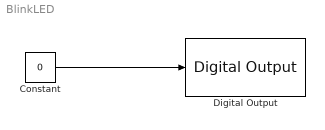
/*
 * BlinkLED.c
 *
 * Academic License - for use in teaching, academic research, and meeting
 * course requirements at degree granting institutions only.  Not for
 * government, commercial, or other organizational use.
 *
 * Code generation for model "BlinkLED".
 *
 * Model version              : 1.1
 * Simulink Coder version : 24.2 (R2024b) 21-Jun-2024
 * C source code generated on : Fri Sep 20 20:22:33 2024
 *
 * Target selection: ert.tlc
 * Note: GRT includes extra infrastructure and instrumentation for prototyping
 * Embedded hardware selection: ARM Compatible->ARM Cortex
 * Code generation objectives: Unspecified
 * Validation result: Not run
 */

#include "BlinkLED.h"
#include "BlinkLED_private.h"
#include <string.h>

/* Block states (default storage) */
DW_BlinkLED_T BlinkLED_DW;

/* Real-time model */
static RT_MODEL_BlinkLED_T BlinkLED_M_;
RT_MODEL_BlinkLED_T *const BlinkLED_M = &BlinkLED_M_;

/* Model step function */
void BlinkLED_step(void)
{
  /* MATLABSystem: '<Root>/Digital Output' incorporates:
   *  Constant: '<Root>/Constant'
   */
  writeDigitalPin(13, 0);

  /* Update absolute time for base rate */
  /* The "clockTick0" counts the number of times the code of this task has
   * been executed. The absolute time is the multiplication of "clockTick0"
   * and "Timing.stepSize0". Size of "clockTick0" ensures timer will not
   * overflow during the application lifespan selected.
   * Timer of this task consists of two 32 bit unsigned integers.
   * The two integers represent the low bits Timing.clockTick0 and the high bits
   * Timing.clockTickH0. When the low bit overflows to 0, the high bits increment.
   */
  if (!(++BlinkLED_M->Timing.clockTick0)) {
    ++BlinkLED_M->Timing.clockTickH0;
  }

  BlinkLED_M->Timing.taskTime0 = BlinkLED_M->Timing.clockTick0 *
    BlinkLED_M->Timing.stepSize0 + BlinkLED_M->Timing.clockTickH0 *
    BlinkLED_M->Timing.stepSize0 * 4294967296.0;
}
